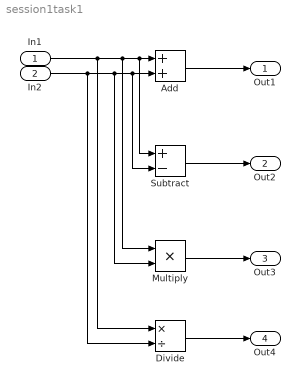
/*
 * File: session1task1.c
 *
 * Code generated for Simulink model 'session1task1'.
 *
 * Model version                  : 1.1
 * Simulink Coder version         : 9.0 (R2018b) 24-May-2018
 * C/C++ source code generated on : Mon Mar 21 16:13:32 2022
 *
 * Target selection: ert.tlc
 * Embedded hardware selection: Intel->x86-64 (Windows64)
 * Code generation objectives: Unspecified
 * Validation result: Not run
 */

#include "session1task1.h"
#include "session1task1_private.h"

/* External inputs (root inport signals with default storage) */
ExtU_session1task1_T session1task1_U;

/* External outputs (root outports fed by signals with default storage) */
ExtY_session1task1_T session1task1_Y;

/* Real-time model */
RT_MODEL_session1task1_T session1task1_M_;
RT_MODEL_session1task1_T *const session1task1_M = &session1task1_M_;

/* Model step function */
void session1task1_step(void)
{
  /* Outport: '<Root>/Out1' incorporates:
   *  Inport: '<Root>/In1'
   *  Inport: '<Root>/In2'
   *  Sum: '<Root>/Add'
   */
  session1task1_Y.Out1 = session1task1_U.In1 + session1task1_U.In2;

  /* Outport: '<Root>/Out2' incorporates:
   *  Inport: '<Root>/In1'
   *  Inport: '<Root>/In2'
   *  Sum: '<Root>/Subtract'
   */
  session1task1_Y.Out2 = session1task1_U.In1 - session1task1_U.In2;

  /* Outport: '<Root>/Out3' incorporates:
   *  Inport: '<Root>/In1'
   *  Inport: '<Root>/In2'
   *  Product: '<Root>/Multiply'
   */
  session1task1_Y.Out3 = session1task1_U.In1 * session1task1_U.In2;

  /* Outport: '<Root>/Out4' incorporates:
   *  Inport: '<Root>/In1'
   *  Inport: '<Root>/In2'
   *  Product: '<Root>/Divide'
   */
  session1task1_Y.Out4 = session1task1_U.In1 / session1task1_U.In2;
}
